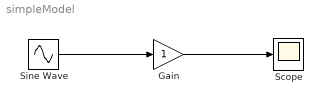
/*
 * simpleModel.c
 *
 * Code generation for model "simpleModel".
 *
 * Model version              : 1.11
 * Simulink Coder version : 8.6 (R2014a) 27-Dec-2013
 * C source code generated on : Tue Apr 21 16:57:41 2015
 *
 * Target selection: grt.tlc
 * Note: GRT includes extra infrastructure and instrumentation for prototyping
 * Embedded hardware selection: 32-bit Generic
 * Code generation objectives: Unspecified
 * Validation result: Not run
 */
#include "simpleModel.h"
#include "simpleModel_private.h"
#include "simpleModel_dt.h"

/* Block signals (auto storage) */
B_simpleModel_T simpleModel_B;

/* Block states (auto storage) */
DW_simpleModel_T simpleModel_DW;

/* Real-time model */
RT_MODEL_simpleModel_T simpleModel_M_;
RT_MODEL_simpleModel_T *const simpleModel_M = &simpleModel_M_;

/* Model output function */
void simpleModel_output(void)
{
  /* Sin: '<Root>/Sine Wave' */
  simpleModel_B.SineWave = sin(simpleModel_P.SineWave_Freq *
    simpleModel_M->Timing.t[0] + simpleModel_P.SineWave_Phase) *
    simpleModel_P.SineWave_Amp + simpleModel_P.SineWave_Bias;

  /* Gain: '<Root>/Gain' */
  simpleModel_B.Gain = simpleModel_P.Gain_Gain * simpleModel_B.SineWave;
}

/* Model update function */
void simpleModel_update(void)
{
  /* Update absolute time for base rate */
  /* The "clockTick0" counts the number of times the code of this task has
   * been executed. The absolute time is the multiplication of "clockTick0"
   * and "Timing.stepSize0". Size of "clockTick0" ensures timer will not
   * overflow during the application lifespan selected.
   * Timer of this task consists of two 32 bit unsigned integers.
   * The two integers represent the low bits Timing.clockTick0 and the high bits
   * Timing.clockTickH0. When the low bit overflows to 0, the high bits increment.
   */
  if (!(++simpleModel_M->Timing.clockTick0)) {
    ++simpleModel_M->Timing.clockTickH0;
  }

  simpleModel_M->Timing.t[0] = simpleModel_M->Timing.clockTick0 *
    simpleModel_M->Timing.stepSize0 + simpleModel_M->Timing.clockTickH0 *
    simpleModel_M->Timing.stepSize0 * 4294967296.0;

  {
    /* Update absolute timer for sample time: [0.01s, 0.0s] */
    /* The "clockTick1" counts the number of times the code of this task has
     * been executed. The absolute time is the multiplication of "clockTick1"
     * and "Timing.stepSize1". Size of "clockTick1" ensures timer will not
     * overflow during the application lifespan selected.
     * Timer of this task consists of two 32 bit unsigned integers.
     * The two integers represent the low bits Timing.clockTick1 and the high bits
     * Timing.clockTickH1. When the low bit overflows to 0, the high bits increment.
     */
    if (!(++simpleModel_M->Timing.clockTick1)) {
      ++simpleModel_M->Timing.clockTickH1;
    }

    simpleModel_M->Timing.t[1] = simpleModel_M->Timing.clockTick1 *
      simpleModel_M->Timing.stepSize1 + simpleModel_M->Timing.clockTickH1 *
      simpleModel_M->Timing.stepSize1 * 4294967296.0;
  }
}
